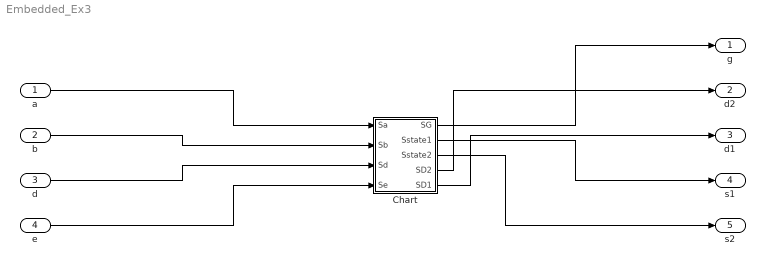
== stateflow chart Embedded_Ex3/Chart ==
  state B [parallel]
    state state1
    state state2
    (default) -> state1 : {Sstate1=true;}
    state1 -> state2 : [c==true]{Sstate1=false;Sstate2=true;}
    state2 -> state1 : [Sb == true && in(C.D.D2)]{Sstate1=true;Sstate2=false;}
  state C [parallel]
    state D
      state D1
      state D2
      (default) -> D1 : {SD1=true;SG=false;}
      D1 -> D2 : [Se==true]{SD2 = true;SD1= false;c = false;}
      D2 -> D2 : [Se==true]{SD2= true;}
    state G
    G -> D : [Sa==true]{c = true;SG=false;}
    (default) -> G : {SG=true;}
    D -> G : [Sd==true]{SD2=false;SG=true;}
  data: c local =false; SG output =false; Sstate1 output =false; Sstate2 output =false; Sa input boolean; Sb input boolean; Sd input boolean; Se input boolean; SD2 output =false; SD1 output =false

/*
 * File: Embedded_Ex3.c
 *
 * Code generated for Simulink model 'Embedded_Ex3'.
 *
 * Model version                  : 1.8
 * Simulink Coder version         : 9.7 (R2022a) 13-Nov-2021
 * C/C++ source code generated on : Mon Jun  5 21:01:07 2023
 *
 * Target selection: ert.tlc
 * Embedded hardware selection: Atmel->AVR
 * Code generation objectives: Unspecified
 * Validation result: Not run
 */

#include "Embedded_Ex3.h"
#include "rtwtypes.h"

/* Named constants for Chart: '<Root>/Chart' */
#define Embedded_Ex3_IN_D              ((uint8_T)1U)
#define Embedded_Ex3_IN_D1             ((uint8_T)1U)
#define Embedded_Ex3_IN_D2             ((uint8_T)2U)
#define Embedded_Ex3_IN_G              ((uint8_T)2U)
#define Embedded_Ex3_IN_NO_ACTIVE_CHILD ((uint8_T)0U)
#define Embedded_Ex3_IN_state1         ((uint8_T)1U)
#define Embedded_Ex3_IN_state2         ((uint8_T)2U)

/* Block states (default storage) */
DW_Embedded_Ex3_T Embedded_Ex3_DW;

/* External inputs (root inport signals with default storage) */
ExtU_Embedded_Ex3_T Embedded_Ex3_U;

/* External outputs (root outports fed by signals with default storage) */
ExtY_Embedded_Ex3_T Embedded_Ex3_Y;

/* Real-time model */
static RT_MODEL_Embedded_Ex3_T Embedded_Ex3_M_;
RT_MODEL_Embedded_Ex3_T *const Embedded_Ex3_M = &Embedded_Ex3_M_;

/* Model step function */
void Embedded_Ex3_step(void)
{
  /* Chart: '<Root>/Chart' incorporates:
   *  Inport: '<Root>/a'
   *  Inport: '<Root>/b'
   *  Inport: '<Root>/d'
   *  Inport: '<Root>/e'
   */
  if (Embedded_Ex3_DW.is_active_c3_Embedded_Ex3 == 0U) {
    Embedded_Ex3_DW.is_active_c3_Embedded_Ex3 = 1U;

    /* Outport: '<Root>/g' */
    Embedded_Ex3_Y.g = true;
    Embedded_Ex3_DW.is_C = Embedded_Ex3_IN_G;

    /* Outport: '<Root>/s1' */
    Embedded_Ex3_Y.s1 = true;
    Embedded_Ex3_DW.is_B = Embedded_Ex3_IN_state1;
  } else {
    if (Embedded_Ex3_DW.is_C == Embedded_Ex3_IN_D) {
      if (Embedded_Ex3_U.d) {
        /* Outport: '<Root>/d2' */
        Embedded_Ex3_Y.d2 = false;

        /* Outport: '<Root>/g' */
        Embedded_Ex3_Y.g = true;
        Embedded_Ex3_DW.is_D = Embedded_Ex3_IN_NO_ACTIVE_CHILD;
        Embedded_Ex3_DW.is_C = Embedded_Ex3_IN_G;
      } else if (Embedded_Ex3_DW.is_D == Embedded_Ex3_IN_D1) {
        if (Embedded_Ex3_U.e) {
          /* Outport: '<Root>/d2' */
          Embedded_Ex3_Y.d2 = true;

          /* Outport: '<Root>/d1' */
          Embedded_Ex3_Y.d1 = false;
          Embedded_Ex3_DW.c = false;
          Embedded_Ex3_DW.is_D = Embedded_Ex3_IN_D2;
        }

        /* case IN_D2: */
      } else if (Embedded_Ex3_U.e) {
        /* Outport: '<Root>/d2' */
        Embedded_Ex3_Y.d2 = true;
        Embedded_Ex3_DW.is_D = Embedded_Ex3_IN_D2;
      }

      /* case IN_G: */
    } else if (Embedded_Ex3_U.a) {
      Embedded_Ex3_DW.c = true;
      Embedded_Ex3_DW.is_C = Embedded_Ex3_IN_D;

      /* Outport: '<Root>/d1' */
      Embedded_Ex3_Y.d1 = true;

      /* Outport: '<Root>/g' */
      Embedded_Ex3_Y.g = false;
      Embedded_Ex3_DW.is_D = Embedded_Ex3_IN_D1;
    }

    if (Embedded_Ex3_DW.is_B == Embedded_Ex3_IN_state1) {
      if (Embedded_Ex3_DW.c) {
        /* Outport: '<Root>/s1' */
        Embedded_Ex3_Y.s1 = false;

        /* Outport: '<Root>/s2' */
        Embedded_Ex3_Y.s2 = true;
        Embedded_Ex3_DW.is_B = Embedded_Ex3_IN_state2;
      }

      /* case IN_state2: */
    } else if (Embedded_Ex3_U.b && (Embedded_Ex3_DW.is_D == Embedded_Ex3_IN_D2))
    {
      /* Outport: '<Root>/s1' */
      Embedded_Ex3_Y.s1 = true;

      /* Outport: '<Root>/s2' */
      Embedded_Ex3_Y.s2 = false;
      Embedded_Ex3_DW.is_B = Embedded_Ex3_IN_state1;
    }
  }

  /* End of Chart: '<Root>/Chart' */
}
